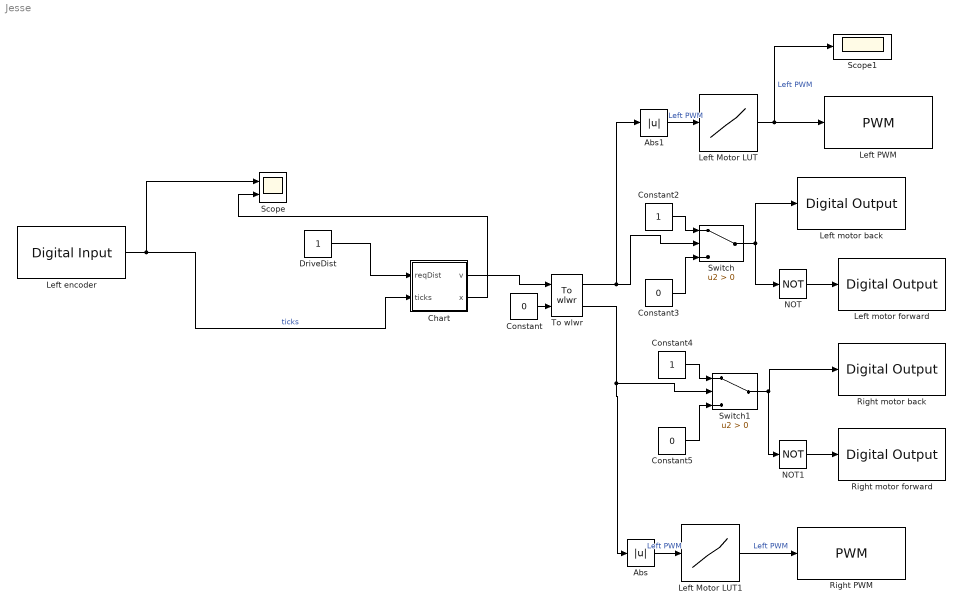
== stateflow chart Jesse/Chart ==
  state Default
    entry:
    ticks;
    i;
    v=-10;
    dist1Tick=(pi*0.031)/10
    reqTicks=reqDist/dist1Tick;
  state Stop
    entry:
    v=0;
  state Move
    entry:
    v=-10;
    i=i+1;
    x=i;
  (default) -> Default
  Default -> Stop [order 2] : [i==reqTicks | i>reqTicks]
  Move -> Default
  Default -> Move [order 1] : [i<reqTicks && ticks==0]
  data: reqDist input; ticks input; v output; dist1Tick local; reqTicks local; i local =0; x output

/*
 * Academic License - for use in teaching, academic research, and meeting
 * course requirements at degree granting institutions only.  Not for
 * government, commercial, or other organizational use.
 *
 * File: Jesse.c
 *
 * Code generated for Simulink model 'Jesse'.
 *
 * Model version                  : 1.12
 * Simulink Coder version         : 9.9 (R2023a) 19-Nov-2022
 * C/C++ source code generated on : Mon Oct  9 13:28:00 2023
 *
 * Target selection: ert.tlc
 * Embedded hardware selection: ARM Compatible->ARM Cortex
 * Code generation objectives: Unspecified
 * Validation result: Not run
 */

#include "Jesse.h"
#include "rtwtypes.h"
#include <math.h>
#include "Jesse_private.h"
#include "Jesse_types.h"

/* Named constants for Chart: '<Root>/Chart' */
#define Jesse_IN_Default               ((uint8_T)1U)
#define Jesse_IN_Move                  ((uint8_T)2U)
#define Jesse_IN_Stop                  ((uint8_T)3U)

/* Block states (default storage) */
DW_Jesse_T Jesse_DW;

/* Real-time model */
static RT_MODEL_Jesse_T Jesse_M_;
RT_MODEL_Jesse_T *const Jesse_M = &Jesse_M_;
static void rate_scheduler(void);
uint32_T plook_u32d_binckan(real_T u, const real_T bp[], uint32_T maxIndex)
{
  uint32_T bpIndex;

  /* Prelookup - Index only
     Index Search method: 'binary'
     Interpolation method: 'Use nearest'
     Extrapolation method: 'Clip'
     Use previous index: 'off'
     Use last breakpoint for index at or above upper limit: 'on'
     Remove protection against out-of-range input in generated code: 'off'
   */
  if (u <= bp[0U]) {
    bpIndex = 0U;
  } else if (u < bp[maxIndex]) {
    bpIndex = binsearch_u32d(u, bp, maxIndex >> 1U, maxIndex);
    if ((bpIndex < maxIndex) && (bp[bpIndex + 1U] - u <= u - bp[bpIndex])) {
      bpIndex++;
    }
  } else {
    bpIndex = maxIndex;
  }

  return bpIndex;
}

uint32_T binsearch_u32d(real_T u, const real_T bp[], uint32_T startIndex,
  uint32_T maxIndex)
{
  uint32_T bpIdx;
  uint32_T bpIndex;
  uint32_T iRght;

  /* Binary Search */
  bpIdx = startIndex;
  bpIndex = 0U;
  iRght = maxIndex;
  while (iRght - bpIndex > 1U) {
    if (u < bp[bpIdx]) {
      iRght = bpIdx;
    } else {
      bpIndex = bpIdx;
    }

    bpIdx = (iRght + bpIndex) >> 1U;
  }

  return bpIndex;
}

/*
 *         This function updates active task flag for each subrate.
 *         The function is called at model base rate, hence the
 *         generated code self-manages all its subrates.
 */
static void rate_scheduler(void)
{
  /* Compute which subrates run during the next base time step.  Subrates
   * are an integer multiple of the base rate counter.  Therefore, the subtask
   * counter is reset when it reaches its limit (zero means run).
   */
  (Jesse_M->Timing.TaskCounters.TID[1])++;
  if ((Jesse_M->Timing.TaskCounters.TID[1]) > 9) {/* Sample time: [0.1s, 0.0s] */
    Jesse_M->Timing.TaskCounters.TID[1] = 0;
  }
}

real_T rt_roundd_snf(real_T u)
{
  real_T y;
  if (fabs(u) < 4.503599627370496E+15) {
    if (u >= 0.5) {
      y = floor(u + 0.5);
    } else if (u > -0.5) {
      y = u * 0.0;
    } else {
      y = ceil(u - 0.5);
    }
  } else {
    y = u;
  }

  return y;
}

/* Model step function */
void Jesse_step(void)
{
  codertarget_arduinobase_inter_T *obj;
  real_T rtb_vtow_idx_0;
  real_T rtb_vtow_idx_1;
  real_T u0;
  int32_T rtb_v;
  uint8_T tmp;
  boolean_T c_value;
  if (Jesse_M->Timing.TaskCounters.TID[1] == 0) {
    /* MATLABSystem: '<Root>/Left encoder' */
    if (Jesse_DW.obj.SampleTime != Jesse_P.Leftencoder_SampleTime) {
      Jesse_DW.obj.SampleTime = Jesse_P.Leftencoder_SampleTime;
    }

    c_value = readDigitalPin(2);

    /* Chart: '<Root>/Chart' incorporates:
     *  Constant: '<Root>/DriveDist'
     *  MATLABSystem: '<Root>/Left encoder'
     */
    if (Jesse_DW.is_active_c3_Jesse == 0U) {
      Jesse_DW.is_active_c3_Jesse = 1U;
      Jesse_DW.is_c3_Jesse = Jesse_IN_Default;
      rtb_v = -10;
      Jesse_DW.reqTicks = Jesse_P.DriveDist_Value / 0.0097389372261283587;
    } else {
      switch (Jesse_DW.is_c3_Jesse) {
       case Jesse_IN_Default:
        rtb_v = -10;
        if ((Jesse_DW.i < Jesse_DW.reqTicks) && (!c_value)) {
          Jesse_DW.is_c3_Jesse = Jesse_IN_Move;
          Jesse_DW.i++;
        } else if ((Jesse_DW.i == Jesse_DW.reqTicks) || (Jesse_DW.i >
                    Jesse_DW.reqTicks)) {
          Jesse_DW.is_c3_Jesse = Jesse_IN_Stop;
          rtb_v = 0;
        }
        break;

       case Jesse_IN_Move:
        Jesse_DW.is_c3_Jesse = Jesse_IN_Default;
        rtb_v = -10;
        Jesse_DW.reqTicks = Jesse_P.DriveDist_Value / 0.0097389372261283587;
        break;

       default:
        /* case IN_Stop: */
        rtb_v = 0;
        break;
      }
    }

    /* End of Chart: '<Root>/Chart' */

    /* Gain: '<S2>/vtow' incorporates:
     *  Constant: '<Root>/Constant'
     *  Gain: '<S2>/change parameters'
     *  SignalConversion generated from: '<S2>/change parameters'
     */
    u0 = 1.0 / Jesse_P.wheelR;
    rtb_vtow_idx_0 = (Jesse_P.changeparameters_Gain[0] * (real_T)rtb_v +
                      Jesse_P.changeparameters_Gain[2] * Jesse_P.Constant_Value)
      * u0;
    rtb_vtow_idx_1 = (Jesse_P.changeparameters_Gain[1] * (real_T)rtb_v +
                      Jesse_P.changeparameters_Gain[3] * Jesse_P.Constant_Value)
      * u0;

    /* MATLABSystem: '<Root>/Left PWM' */
    obj = &Jesse_DW.obj_b;
    obj->PWMDriverObj.MW_PWM_HANDLE = MW_PWM_GetHandle(16U);

    /* Lookup_n-D: '<Root>/Left Motor LUT' incorporates:
     *  Abs: '<Root>/Abs1'
     */
    u0 = Jesse_P.InputPWM[plook_u32d_binckan(fabs(rtb_vtow_idx_0),
      Jesse_P.WheelSpeed, 172U)];

    /* MATLABSystem: '<Root>/Left PWM' */
    if (!(u0 <= 255.0)) {
      u0 = 255.0;
    }

    if (!(u0 >= 0.0)) {
      u0 = 0.0;
    }

    MW_PWM_SetDutyCycle(Jesse_DW.obj_b.PWMDriverObj.MW_PWM_HANDLE, u0);

    /* Switch: '<Root>/Switch' incorporates:
     *  Constant: '<Root>/Constant2'
     *  Constant: '<Root>/Constant3'
     */
    if (rtb_vtow_idx_0 > Jesse_P.Switch_Threshold) {
      rtb_vtow_idx_0 = Jesse_P.Constant2_Value;
    } else {
      rtb_vtow_idx_0 = Jesse_P.Constant3_Value;
    }

    /* End of Switch: '<Root>/Switch' */

    /* MATLABSystem: '<Root>/Left motor back' */
    u0 = rt_roundd_snf(rtb_vtow_idx_0);
    if (u0 < 256.0) {
      if (u0 >= 0.0) {
        tmp = (uint8_T)u0;
      } else {
        tmp = 0U;
      }
    } else {
      tmp = MAX_uint8_T;
    }

    writeDigitalPin(5, tmp);

    /* End of MATLABSystem: '<Root>/Left motor back' */

    /* MATLABSystem: '<Root>/Left motor forward' incorporates:
     *  Logic: '<Root>/NOT'
     */
    writeDigitalPin(4, (uint8_T)!(rtb_vtow_idx_0 != 0.0));

    /* MATLABSystem: '<Root>/Right PWM' */
    obj = &Jesse_DW.obj_ac;
    obj->PWMDriverObj.MW_PWM_HANDLE = MW_PWM_GetHandle(17U);

    /* Lookup_n-D: '<Root>/Left Motor LUT1' incorporates:
     *  Abs: '<Root>/Abs'
     */
    u0 = Jesse_P.InputPWM[plook_u32d_binckan(fabs(rtb_vtow_idx_1),
      Jesse_P.WheelSpeed, 172U)];

    /* MATLABSystem: '<Root>/Right PWM' */
    if (!(u0 <= 255.0)) {
      u0 = 255.0;
    }

    if (!(u0 >= 0.0)) {
      u0 = 0.0;
    }

    MW_PWM_SetDutyCycle(Jesse_DW.obj_ac.PWMDriverObj.MW_PWM_HANDLE, u0);

    /* Switch: '<Root>/Switch1' incorporates:
     *  Constant: '<Root>/Constant4'
     *  Constant: '<Root>/Constant5'
     */
    if (rtb_vtow_idx_1 > Jesse_P.Switch1_Threshold) {
      rtb_vtow_idx_1 = Jesse_P.Constant4_Value;
    } else {
      rtb_vtow_idx_1 = Jesse_P.Constant5_Value;
    }

    /* End of Switch: '<Root>/Switch1' */

    /* MATLABSystem: '<Root>/Right motor back' */
    u0 = rt_roundd_snf(rtb_vtow_idx_1);
    if (u0 < 256.0) {
      if (u0 >= 0.0) {
        tmp = (uint8_T)u0;
      } else {
        tmp = 0U;
      }
    } else {
      tmp = MAX_uint8_T;
    }

    writeDigitalPin(7, tmp);

    /* End of MATLABSystem: '<Root>/Right motor back' */

    /* MATLABSystem: '<Root>/Right motor forward' incorporates:
     *  Logic: '<Root>/NOT1'
     */
    writeDigitalPin(6, (uint8_T)!(rtb_vtow_idx_1 != 0.0));
  }

  rate_scheduler();
}
